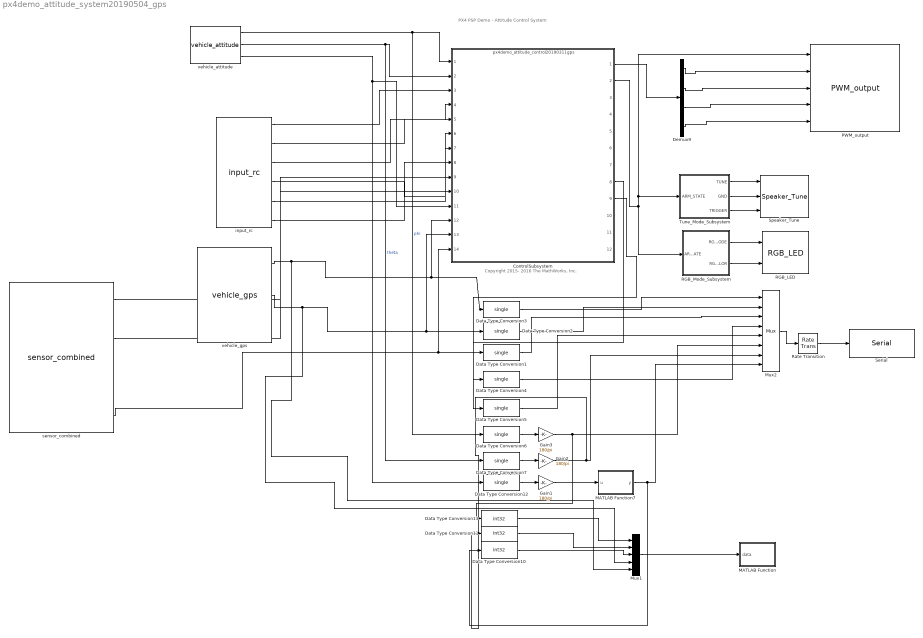
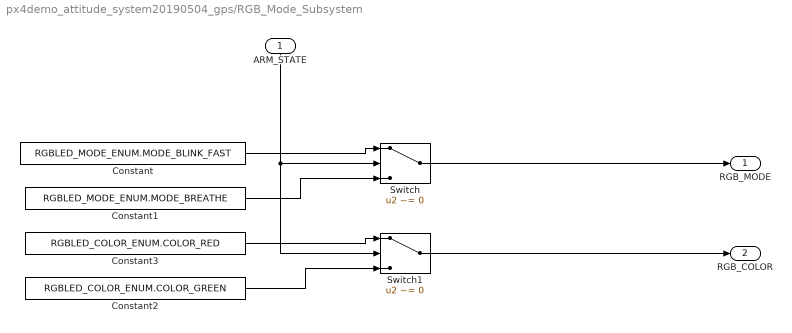
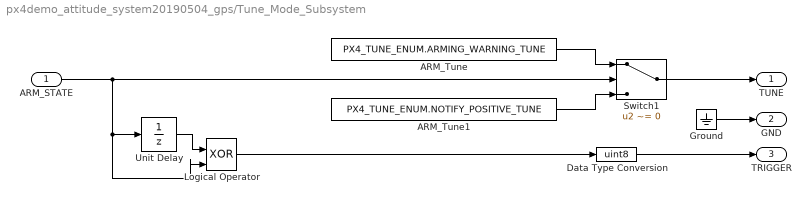
== matlab function px4demo_attitude_system20190504_gps/MATLAB Function ==
function fcn(data)
    file = fopen('/fs/microsd/history.txt','a');
    for i=1:5
        fprintf(file,'%ld/', data(i))
    end
    fprintf(file,'%s\n', ' ')
    fclose(file);
y = data;

== matlab function px4demo_attitude_system20190504_gps/MATLAB Function7 ==
function y = fcn(u)
if(u<=0)
    y=360+u;
else
    y=u
end

/*
 * Academic License - for use in teaching, academic research, and meeting
 * course requirements at degree granting institutions only.  Not for
 * government, commercial, or other organizational use.
 *
 * File: px4demo_attitude_system20190504_gps.c
 *
 * Code generated for Simulink model 'px4demo_attitude_system20190504_gps'.
 *
 * Model version                  : 1.196
 * Simulink Coder version         : 8.11 (R2016b) 25-Aug-2016
 * C/C++ source code generated on : Fri Mar 13 20:43:33 2020
 *
 * Target selection: ert.tlc
 * Embedded hardware selection: ARM Compatible->ARM Cortex
 * Code generation objectives: Unspecified
 * Validation result: Not run
 */

#include "px4demo_attitude_system20190504_gps.h"
#include "px4demo_attitude_system20190504_gps_private.h"
#define px4demo_attitude_system20_block (true)

const char *g_pwm_device = PWM_OUTPUT0_DEVICE_PATH;
int g_pwm_fd = -1;
bool g_pwm_enabled = false;
rtTimingBridge px4demo_attitude_sys_TimingBrdg;
const uint8_T px4demo_attitude_system20190504_gps_U8GND = 0U;/* uint8_T ground */

/* Block signals (auto storage) */
B_px4demo_attitude_system2019_T px4demo_attitude_system201905_B;

/* Block states (auto storage) */
DW_px4demo_attitude_system201_T px4demo_attitude_system20190_DW;

/* Real-time model */
RT_MODEL_px4demo_attitude_sys_T px4demo_attitude_system20190_M_;
RT_MODEL_px4demo_attitude_sys_T *const px4demo_attitude_system20190_M =
  &px4demo_attitude_system20190_M_;

/* Forward declaration for local functions */
static int8_T px4demo_attitude_syste_filedata(void);
static real_T px4demo_attitude_sy_fileManager(void);
static real_T px4demo_attitude_system20_fopen(void);
static void px4demo_attitude__fileManager_b(real_T varargin_1, FILE * *f,
  boolean_T *a);
static int32_T px4demo_attitude_sys_cfprintf_n(real_T fileID, const char
  * varargin_1);
static FILE * px4demo_attitud_fileManager_bxg(int8_T varargin_1);
static int32_T px4demo_attitude_fileManager_bx(real_T varargin_1);
static void px4demo_attitude_system2_fclose(real_T fileID);
static int32_T px4demo_attitude_syste_cfprintf(real_T fileID, int32_T varargin_1);
static void rate_scheduler(void);

/*
 *   This function updates active task flag for each subrate.
 * The function is called at model base rate, hence the
 * generated code self-manages all its subrates.
 */
static void rate_scheduler(void)
{
  /* Compute which subrates run during the next base time step.  Subrates
   * are an integer multiple of the base rate counter.  Therefore, the subtask
   * counter is reset when it reaches its limit (zero means run).
   */
  (px4demo_attitude_system20190_M->Timing.TaskCounters.TID[1])++;
  if ((px4demo_attitude_system20190_M->Timing.TaskCounters.TID[1]) > 24) {/* Sample time: [0.1s, 0.0s] */
    px4demo_attitude_system20190_M->Timing.TaskCounters.TID[1] = 0;
  }

  (px4demo_attitude_system20190_M->Timing.TaskCounters.TID[2])++;
  if ((px4demo_attitude_system20190_M->Timing.TaskCounters.TID[2]) > 74) {/* Sample time: [0.3s, 0.0s] */
    px4demo_attitude_system20190_M->Timing.TaskCounters.TID[2] = 0;
  }

  (px4demo_attitude_system20190_M->Timing.TaskCounters.TID[3])++;
  if ((px4demo_attitude_system20190_M->Timing.TaskCounters.TID[3]) > 124) {/* Sample time: [0.5s, 0.0s] */
    px4demo_attitude_system20190_M->Timing.TaskCounters.TID[3] = 0;
  }

  (px4demo_attitude_system20190_M->Timing.TaskCounters.TID[4])++;
  if ((px4demo_attitude_system20190_M->Timing.TaskCounters.TID[4]) > 4999) {/* Sample time: [20.0s, 0.0s] */
    px4demo_attitude_system20190_M->Timing.TaskCounters.TID[4] = 0;
  }
}

/* Function for MATLAB Function: '<Root>/MATLAB Function' */
static int8_T px4demo_attitude_syste_filedata(void)
{
  int8_T f;
  boolean_T exitg1;
  f = 0;
  px4demo_attitude_system201905_B.k = 1;
  exitg1 = false;
  while ((!exitg1) && (px4demo_attitude_system201905_B.k < 21)) {
    if (px4demo_attitude_system20190_DW.eml_openfiles[px4demo_attitude_system201905_B.k
        - 1] == NULL) {
      f = px4demo_attitude_system201905_B.k;
      exitg1 = true;
    } else {
      px4demo_attitude_system201905_B.k++;
    }
  }

  return f;
}

/* Function for MATLAB Function: '<Root>/MATLAB Function' */
static real_T px4demo_attitude_sy_fileManager(void)
{
  FILE * filestar;
  static const char_T b[24] = { '/', 'f', 's', '/', 'm', 'i', 'c', 'r', 'o', 's',
    'd', '/', 'h', 'i', 's', 't', 'o', 'r', 'y', '.', 't', 'x', 't', '\x00' };

  px4demo_attitude_system201905_B.fileid = -1;
  px4demo_attitude_system201905_B.j = px4demo_attitude_syste_filedata();
  if (!(px4demo_attitude_system201905_B.j < 1)) {
    for (px4demo_attitude_system201905_B.i0 = 0;
         px4demo_attitude_system201905_B.i0 < 24;
         px4demo_attitude_system201905_B.i0++) {
      px4demo_attitude_system201905_B.b[px4demo_attitude_system201905_B.i0] =
        b[px4demo_attitude_system201905_B.i0];
    }

    px4demo_attitude_system201905_B.c[0] = 'a';
    px4demo_attitude_system201905_B.c[1] = 'b';
    px4demo_attitude_system201905_B.c[2] = '\x00';
    filestar = fopen(px4demo_attitude_system201905_B.b,
                     px4demo_attitude_system201905_B.c);
    if (filestar != NULL) {
      px4demo_attitude_system20190_DW.eml_openfiles[px4demo_attitude_system201905_B.j
        - 1] = filestar;
      px4demo_attitude_system20190_DW.eml_autoflush[px4demo_attitude_system201905_B.j
        - 1] = true;
      px4demo_attitude_system201905_B.i0 = px4demo_attitude_system201905_B.j + 2;
      if (px4demo_attitude_system201905_B.i0 > 127) {
        px4demo_attitude_system201905_B.i0 = 127;
      }

      px4demo_attitude_system201905_B.fileid = (int8_T)
        px4demo_attitude_system201905_B.i0;
    }
  }

  return px4demo_attitude_system201905_B.fileid;
}

/* Function for MATLAB Function: '<Root>/MATLAB Function' */
static real_T px4demo_attitude_system20_fopen(void)
{
  return px4demo_attitude_sy_fileManager();
}

/* Function for MATLAB Function: '<Root>/MATLAB Function' */
static void px4demo_attitude__fileManager_b(real_T varargin_1, FILE * *f,
  boolean_T *a)
{
  px4demo_attitude_system201905_B.fileid_cx = (int8_T)rt_roundd_snf(varargin_1);
  if ((px4demo_attitude_system201905_B.fileid_cx > 22) ||
      (px4demo_attitude_system201905_B.fileid_cx < 0) || (varargin_1 !=
       px4demo_attitude_system201905_B.fileid_cx)) {
    px4demo_attitude_system201905_B.fileid_cx = -1;
  }

  if (px4demo_attitude_system201905_B.fileid_cx >= 3) {
    px4demo_attitude_system201905_B.fileid_cx = (int8_T)
      (px4demo_attitude_system201905_B.fileid_cx - 2);
    *f =
      px4demo_attitude_system20190_DW.eml_openfiles[px4demo_attitude_system201905_B.fileid_cx
      - 1];
    *a =
      px4demo_attitude_system20190_DW.eml_autoflush[px4demo_attitude_system201905_B.fileid_cx
      - 1];
  } else if (px4demo_attitude_system201905_B.fileid_cx == 0) {
    *f = stdin;
    *a = true;
  } else if (px4demo_attitude_system201905_B.fileid_cx == 1) {
    *f = stdout;
    *a = true;
  } else if (px4demo_attitude_system201905_B.fileid_cx == 2) {
    *f = stderr;
    *a = true;
  } else {
    *f = NULL;
    *a = true;
  }
}

/* Function for MATLAB Function: '<Root>/MATLAB Function' */
static int32_T px4demo_attitude_sys_cfprintf_n(real_T fileID, const char
  * varargin_1)
{
  int32_T nbytesint;
  FILE * b_NULL;
  FILE * filestar;
  static const char_T cfmt[4] = { '%', 's', '\x0a', '\x00' };

  b_NULL = NULL;
  nbytesint = 0;
  px4demo_attitude__fileManager_b(fileID, &filestar,
    &px4demo_attitude_system201905_B.autoflush_b);
  if (!(filestar == b_NULL)) {
    nbytesint = fprintf(filestar, cfmt, varargin_1);
    if (px4demo_attitude_system201905_B.autoflush_b) {
      fflush(filestar);
    }
  }

  return nbytesint;
}

/* Function for MATLAB Function: '<Root>/MATLAB Function' */
static FILE * px4demo_attitud_fileManager_bxg(int8_T varargin_1)
{
  FILE * f;
  px4demo_attitude_system201905_B.fileid_k = varargin_1;
  if ((varargin_1 > 22) || (varargin_1 < 0)) {
    px4demo_attitude_system201905_B.fileid_k = -1;
  }

  if (px4demo_attitude_system201905_B.fileid_k >= 3) {
    f =
      px4demo_attitude_system20190_DW.eml_openfiles[px4demo_attitude_system201905_B.fileid_k
      - 3];
  } else if (px4demo_attitude_system201905_B.fileid_k == 0) {
    f = stdin;
  } else if (px4demo_attitude_system201905_B.fileid_k == 1) {
    f = stdout;
  } else if (px4demo_attitude_system201905_B.fileid_k == 2) {
    f = stderr;
  } else {
    f = NULL;
  }

  return f;
}

/* Function for MATLAB Function: '<Root>/MATLAB Function' */
static int32_T px4demo_attitude_fileManager_bx(real_T varargin_1)
{
  int32_T f;
  FILE * filestar;
  f = -1;
  px4demo_attitude_system201905_B.fileid_c = (int8_T)rt_roundd_snf(varargin_1);
  if ((px4demo_attitude_system201905_B.fileid_c > 22) ||
      (px4demo_attitude_system201905_B.fileid_c < 0) || (varargin_1 !=
       px4demo_attitude_system201905_B.fileid_c)) {
    px4demo_attitude_system201905_B.fileid_c = -1;
  }

  filestar = px4demo_attitud_fileManager_bxg
    (px4demo_attitude_system201905_B.fileid_c);
  if (!((filestar == NULL) || (px4demo_attitude_system201905_B.fileid_c < 3))) {
    px4demo_attitude_system201905_B.cst = fclose(filestar);
    if (px4demo_attitude_system201905_B.cst == 0) {
      f = 0;
      px4demo_attitude_system201905_B.fileid_c = (int8_T)
        (px4demo_attitude_system201905_B.fileid_c - 2);
      px4demo_attitude_system20190_DW.eml_openfiles[px4demo_attitude_system201905_B.fileid_c
        - 1] = NULL;
      px4demo_attitude_system20190_DW.eml_autoflush[px4demo_attitude_system201905_B.fileid_c
        - 1] = true;
    }
  }

  return f;
}

/* Function for MATLAB Function: '<Root>/MATLAB Function' */
static void px4demo_attitude_system2_fclose(real_T fileID)
{
  px4demo_attitude_fileManager_bx(fileID);
}

/* Function for MATLAB Function: '<Root>/MATLAB Function' */
static int32_T px4demo_attitude_syste_cfprintf(real_T fileID, int32_T varargin_1)
{
  int32_T nbytesint;
  FILE * b_NULL;
  FILE * filestar;
  static const char_T cfmt[5] = { '%', 'l', 'd', '/', '\x00' };

  b_NULL = NULL;
  nbytesint = 0;
  px4demo_attitude__fileManager_b(fileID, &filestar,
    &px4demo_attitude_system201905_B.autoflush);
  if (!(filestar == b_NULL)) {
    nbytesint = fprintf(filestar, cfmt, varargin_1);
    if (px4demo_attitude_system201905_B.autoflush) {
      fflush(filestar);
    }
  }

  return nbytesint;
}

/* Model step function */
void px4demo_attitude_system20190504_gps_step(void)
{
  /* S-Function (sfun_px4_vehicle_attitude): '<Root>/vehicle_attitude' */
  {
    bool updated;
    orb_check(px4demo_attitude_system20190_DW.vehicle_attitude_vehicle_attitu.fd,
              &updated);
    if (updated) {
      struct vehicle_attitude_s raw;
      orb_copy(ORB_ID(vehicle_attitude),
               px4demo_attitude_system20190_DW.vehicle_attitude_vehicle_attitu.fd,
               &raw);

      /* read out the Roll value */
      px4demo_attitude_system201905_B.phi = raw.roll;// phi

      /* read out the Pitch value */
      px4demo_attitude_system201905_B.theta = raw.pitch;// theta

      /* read out the Yaw value */
      px4demo_attitude_system201905_B.vehicle_attitude_o3 = raw.yaw;// psi
    }
  }

  /* Gain: '<Root>/Gain3' */
  px4demo_attitude_system201905_B.Gain3 = 57.2957802F *
    px4demo_attitude_system201905_B.phi;

  /* Gain: '<Root>/Gain2' */
  px4demo_attitude_system201905_B.Gain2 = 57.2957802F *
    px4demo_attitude_system201905_B.theta;

  /* Gain: '<Root>/Gain1' */
  px4demo_attitude_system201905_B.Gain1 = 57.2957802F *
    px4demo_attitude_system201905_B.vehicle_attitude_o3;

  /* MATLAB Function: '<Root>/MATLAB Function7' */
  /* MATLAB Function 'MATLAB Function7': '<S2>:1' */
  if (px4demo_attitude_system201905_B.Gain1 <= 0.0F) {
    /* '<S2>:1:2' */
    /* '<S2>:1:3' */
    px4demo_attitude_system201905_B.Gain1 += 360.0F;
  } else {
    /* '<S2>:1:5' */
  }

  /* End of MATLAB Function: '<Root>/MATLAB Function7' */

  /* S-Function (sfun_px4_gps): '<Root>/vehicle_gps' */
  {
    int poll_ret;
    bool updated;
    orb_check(px4demo_attitude_system20190_DW.vehicle_gps_gps_fd.fd, &updated);
    if (updated) {
      /* obtained GPS data */
      struct vehicle_gps_position_s raw;

      /* copy sensors raw data into local buffer */
      orb_copy(ORB_ID(vehicle_gps_position),
               px4demo_attitude_system20190_DW.vehicle_gps_gps_fd.fd, &raw);

      /* read out Lat/Lon Values */
      px4demo_attitude_system201905_B.vehicle_gps_o1 = raw.lat;
      px4demo_attitude_system201905_B.vehicle_gps_o2 = raw.lon;

      /* 0-1: no fix, 2: 2D fix, 3: 3D fix. Some applications will not use the value of this field unless it is at least two, so always correctly fill in the fix.   */
      px4demo_attitude_system201905_B.vehicle_gps_o3 = raw.fix_type;
    }
  }

  /* DataTypeConversion: '<Root>/Data Type Conversion13' */
  px4demo_attitude_system201905_B.f0 = (real32_T)floor
    (px4demo_attitude_system201905_B.Gain3);
  if (rtIsNaNF(px4demo_attitude_system201905_B.f0) || rtIsInfF
      (px4demo_attitude_system201905_B.f0)) {
    px4demo_attitude_system201905_B.f0 = 0.0F;
  } else {
    px4demo_attitude_system201905_B.f0 = (real32_T)fmod
      (px4demo_attitude_system201905_B.f0, 4.2949673E+9F);
  }

  /* SignalConversion: '<S1>/TmpSignal ConversionAt SFunction Inport1' incorporates:
   *  DataTypeConversion: '<Root>/Data Type Conversion13'
   *  MATLAB Function: '<Root>/MATLAB Function'
   */
  px4demo_attitude_system201905_B.TmpSignalConversionAtSFunctionI[0] =
    px4demo_attitude_system201905_B.f0 < 0.0F ? -(int32_T)(uint32_T)
    -px4demo_attitude_system201905_B.f0 : (int32_T)(uint32_T)
    px4demo_attitude_system201905_B.f0;

  /* DataTypeConversion: '<Root>/Data Type Conversion11' */
  px4demo_attitude_system201905_B.f0 = (real32_T)floor
    (px4demo_attitude_system201905_B.Gain2);
  if (rtIsNaNF(px4demo_attitude_system201905_B.f0) || rtIsInfF
      (px4demo_attitude_system201905_B.f0)) {
    px4demo_attitude_system201905_B.f0 = 0.0F;
  } else {
    px4demo_attitude_system201905_B.f0 = (real32_T)fmod
      (px4demo_attitude_system201905_B.f0, 4.2949673E+9F);
  }

  /* SignalConversion: '<S1>/TmpSignal ConversionAt SFunction Inport1' incorporates:
   *  DataTypeConversion: '<Root>/Data Type Conversion11'
   *  MATLAB Function: '<Root>/MATLAB Function'
   */
  px4demo_attitude_system201905_B.TmpSignalConversionAtSFunctionI[1] =
    px4demo_attitude_system201905_B.f0 < 0.0F ? -(int32_T)(uint32_T)
    -px4demo_attitude_system201905_B.f0 : (int32_T)(uint32_T)
    px4demo_attitude_system201905_B.f0;

  /* DataTypeConversion: '<Root>/Data Type Conversion10' */
  px4demo_attitude_system201905_B.f0 = (real32_T)floor
    (px4demo_attitude_system201905_B.Gain1);
  if (rtIsNaNF(px4demo_attitude_system201905_B.f0) || rtIsInfF
      (px4demo_attitude_system201905_B.f0)) {
    px4demo_attitude_system201905_B.f0 = 0.0F;
  } else {
    px4demo_attitude_system201905_B.f0 = (real32_T)fmod
      (px4demo_attitude_system201905_B.f0, 4.2949673E+9F);
  }

  /* SignalConversion: '<S1>/TmpSignal ConversionAt SFunction Inport1' incorporates:
   *  DataTypeConversion: '<Root>/Data Type Conversion10'
   *  MATLAB Function: '<Root>/MATLAB Function'
   */
  px4demo_attitude_system201905_B.TmpSignalConversionAtSFunctionI[2] =
    px4demo_attitude_system201905_B.f0 < 0.0F ? -(int32_T)(uint32_T)
    -px4demo_attitude_system201905_B.f0 : (int32_T)(uint32_T)
    px4demo_attitude_system201905_B.f0;
  px4demo_attitude_system201905_B.TmpSignalConversionAtSFunctionI[3] =
    px4demo_attitude_system201905_B.vehicle_gps_o2;
  px4demo_attitude_system201905_B.TmpSignalConversionAtSFunctionI[4] =
    px4demo_attitude_system201905_B.vehicle_gps_o1;

  /* MATLAB Function: '<Root>/MATLAB Function' */
  /* MATLAB Function 'MATLAB Function': '<S1>:1' */
  /* '<S1>:1:2' */
  px4demo_attitude_system201905_B.file = px4demo_attitude_system20_fopen();

  /* '<S1>:1:3' */
  for (px4demo_attitude_system201905_B.i = 0; px4demo_attitude_system201905_B.i <
       5; px4demo_attitude_system201905_B.i++) {
    /* '<S1>:1:3' */
    /* '<S1>:1:4' */
    px4demo_attitude_syste_cfprintf(px4demo_attitude_system201905_B.file,
      px4demo_attitude_system201905_B.TmpSignalConversionAtSFunctionI[px4demo_attitude_system201905_B.i]);
  }

  /* '<S1>:1:6' */
  px4demo_attitude_sys_cfprintf_n(px4demo_attitude_system201905_B.file, " ");

  /* '<S1>:1:7' */
  px4demo_attitude_system2_fclose(px4demo_attitude_system201905_B.file);

  /* S-Function (sfun_px4_input_rc): '<Root>/input_rc' */
  {
    bool updated;
    orb_check(px4demo_attitude_system20190_DW.input_rc_input_rc_fd.fd, &updated);
    if (updated) {
      struct rc_input_values pwm_inputs;

      /* copy input_rc raw data into local buffer (uint16)*/
      orb_copy(ORB_ID(input_rc),
               px4demo_attitude_system20190_DW.input_rc_input_rc_fd.fd,
               &pwm_inputs);
      px4demo_attitude_system201905_B.input_rc_o1 = pwm_inputs.values[0];
      px4demo_attitude_system201905_B.input_rc_o2 = pwm_inputs.values[1];
      px4demo_attitude_system201905_B.input_rc_o3 = pwm_inputs.values[2];
      px4demo_attitude_system201905_B.input_rc_o4 = pwm_inputs.values[3];
      px4demo_attitude_system201905_B.input_rc_o5 = pwm_inputs.values[4];
      px4demo_attitude_system201905_B.input_rc_o6 = pwm_inputs.values[5];
    }
  }

  /* S-Function (sfun_px4_sensor_combined): '<Root>/sensor_combined' */
  {
    bool updated;
    orb_check(px4demo_attitude_system20190_DW.sensor_combined_sensor_fd.fd,
              &updated);
    if (updated) {
      /* obtained data sensor combined */
      struct sensor_combined_s raw;

      /* copy sensors raw data into local buffer */
      orb_copy(ORB_ID(sensor_combined),
               px4demo_attitude_system20190_DW.sensor_combined_sensor_fd.fd,
               &raw);

      /* read out the gyro X,Y,Z */
      px4demo_attitude_system201905_B.sensor_combined_o1 = (float)
        raw.gyro_rad_s[0];
      px4demo_attitude_system201905_B.sensor_combined_o2 = (float)
        raw.gyro_rad_s[1];
      px4demo_attitude_system201905_B.sensor_combined_o3 = (float)
        raw.gyro_rad_s[2];

      /* read out the baro altimeter */
      px4demo_attitude_system201905_B.sensor_combined_o4 = (float)
        raw.baro_alt_meter[0];
    }
  }

  /* ModelReference: '<Root>/ControlSubsystem' */
  px4demo_attitude_control2019031(&px4demo_attitude_system201905_B.phi,
    &px4demo_attitude_system201905_B.theta,
    &px4demo_attitude_system201905_B.input_rc_o1,
    &px4demo_attitude_system201905_B.input_rc_o2,
    &px4demo_attitude_system201905_B.input_rc_o3,
    &px4demo_attitude_system201905_B.input_rc_o4,
    &px4demo_attitude_system201905_B.input_rc_o5,
    &px4demo_attitude_system201905_B.input_rc_o6,
    &px4demo_attitude_system201905_B.sensor_combined_o1,
    &px4demo_attitude_system201905_B.sensor_combined_o2,
    &px4demo_attitude_system201905_B.vehicle_attitude_o3,
    &px4demo_attitude_system201905_B.vehicle_gps_o1,
    &px4demo_attitude_system201905_B.vehicle_gps_o2,
    &px4demo_attitude_system201905_B.sensor_combined_o4,
    &px4demo_attitude_system201905_B.ControlSubsystem_o1[0],
    &px4demo_attitude_system201905_B.ControlSubsystem_o2,
    &px4demo_attitude_system201905_B.ControlSubsystem_o3,
    &px4demo_attitude_system201905_B.ControlSubsystem_o4,
    &px4demo_attitude_system201905_B.ControlSubsystem_o5,
    &px4demo_attitude_system201905_B.ControlSubsystem_o6,
    &px4demo_attitude_system201905_B.ControlSubsystem_o7,
    &px4demo_attitude_system201905_B.ControlSubsystem_o8,
    &px4demo_attitude_system201905_B.ControlSubsystem_o9,
    &px4demo_attitude_system201905_B.ControlSubsystem_o10,
    &px4demo_attitude_system201905_B.ControlSubsystem_o11,
    &px4demo_attitude_system201905_B.ControlSubsystem_o12,
    &(px4demo_attitude_system20190_DW.ControlSubsystem_DWORK1.rtb),
    &(px4demo_attitude_system20190_DW.ControlSubsystem_DWORK1.rtdw));

  /* S-Function (sfun_px4_pwm): '<Root>/PWM_output' */
  if (px4demo_attitude_system201905_B.ControlSubsystem_o2 == true) {
    if (g_pwm_enabled == false) {
      int rc;

      /* arm system */
      rc = ioctl(g_pwm_fd, PWM_SERVO_ARM, 0);
      if (rc != OK)
        err(1,"PWM_SERVO_ARM");
      else {
        ioctl(g_pwm_fd, PWM_SERVO_SET(0), 900);
        ioctl(g_pwm_fd, PWM_SERVO_SET(1), 900);
        ioctl(g_pwm_fd, PWM_SERVO_SET(2), 900);
        ioctl(g_pwm_fd, PWM_SERVO_SET(3), 900);
        g_pwm_enabled = true;
        printf("***ARMED*** PWM fd = %d\n", g_pwm_fd);
      }
    }
  } else {
    if (g_pwm_enabled == true) {
      int rc;

      /* disarm system if enabled */
      ioctl(g_pwm_fd, PWM_SERVO_SET(0), 900);
      ioctl(g_pwm_fd, PWM_SERVO_SET(1), 900);
      ioctl(g_pwm_fd, PWM_SERVO_SET(2), 900);
      ioctl(g_pwm_fd, PWM_SERVO_SET(3), 900);
      rc = ioctl(g_pwm_fd, PWM_SERVO_DISARM, 0);
      g_pwm_enabled = false;
      if (rc != OK)
        err(1, "PWM_SERVO_DISARM");
      else
        printf("***DISARMED*** PWM fd = %d\n", g_pwm_fd);
    }
  }

  if (g_pwm_enabled) {
    /* output the PWM signals */
    ioctl(g_pwm_fd, PWM_SERVO_SET(0), (unsigned int)
          px4demo_attitude_system201905_B.ControlSubsystem_o1[0]);
    ioctl(g_pwm_fd, PWM_SERVO_SET(1), (unsigned int)
          px4demo_attitude_system201905_B.ControlSubsystem_o1[1]);
    ioctl(g_pwm_fd, PWM_SERVO_SET(2), (unsigned int)
          px4demo_attitude_system201905_B.ControlSubsystem_o1[2]);
    ioctl(g_pwm_fd, PWM_SERVO_SET(3), (unsigned int)
          px4demo_attitude_system201905_B.ControlSubsystem_o1[3]);
  }

  if (px4demo_attitude_system20190_M->Timing.TaskCounters.TID[3] == 0) {
    /* Switch: '<S3>/Switch' incorporates:
     *  Constant: '<S3>/Constant'
     *  Constant: '<S3>/Constant1'
     *  Constant: '<S3>/Constant2'
     *  Constant: '<S3>/Constant3'
     *  Switch: '<S3>/Switch1'
     */
    if (px4demo_attitude_system201905_B.ControlSubsystem_o2) {
      px4demo_attitude_system201905_B.Switch = MODE_BLINK_FAST;
      px4demo_attitude_system201905_B.Switch1 = COLOR_RED;
    } else {
      px4demo_attitude_system201905_B.Switch = MODE_BREATHE;
      px4demo_attitude_system201905_B.Switch1 = COLOR_GREEN;
    }

    /* End of Switch: '<S3>/Switch' */

    /* S-Function (sfun_px4_rgbled): '<Root>/RGB_LED' */
    ioctl(px4demo_attitude_system20190_DW.RGB_LED_rgbled_fd, RGBLED_SET_MODE,
          px4demo_attitude_system201905_B.Switch);
    ioctl(px4demo_attitude_system20190_DW.RGB_LED_rgbled_fd, RGBLED_SET_COLOR,
          px4demo_attitude_system201905_B.Switch1);
  }

  /* RateTransition: '<Root>/Rate Transition' incorporates:
   *  DataTypeConversion: '<Root>/Data Type Conversion2'
   *  DataTypeConversion: '<Root>/Data Type Conversion3'
   */
  if (px4demo_attitude_system20190_M->Timing.TaskCounters.TID[2] == 0) {
    px4demo_attitude_system201905_B.RateTransition_m[0] = (real32_T)
      px4demo_attitude_system201905_B.vehicle_gps_o1;
    px4demo_attitude_system201905_B.RateTransition_m[1] = (real32_T)
      px4demo_attitude_system201905_B.vehicle_gps_o2;
    px4demo_attitude_system201905_B.RateTransition_m[2] =
      px4demo_attitude_system201905_B.sensor_combined_o4;
    px4demo_attitude_system201905_B.RateTransition_m[3] =
      px4demo_attitude_system201905_B.ControlSubsystem_o8;
    px4demo_attitude_system201905_B.RateTransition_m[4] =
      px4demo_attitude_system201905_B.ControlSubsystem_o9;
    px4demo_attitude_system201905_B.RateTransition_m[5] =
      px4demo_attitude_system201905_B.Gain3;
    px4demo_attitude_system201905_B.RateTransition_m[6] =
      px4demo_attitude_system201905_B.Gain2;
    px4demo_attitude_system201905_B.RateTransition_m[7] =
      px4demo_attitude_system201905_B.Gain1;

    /* Start for MATLABSystem: '<Root>/Serial' incorporates:
     *  DataTypeConversion: '<Root>/Data Type Conversion2'
     *  DataTypeConversion: '<Root>/Data Type Conversion3'
     *  MATLABSystem: '<Root>/Serial'
     */
    MW_writeSerial(px4demo_attitude_system20190_DW.obj.fh_index,
                   px4demo_attitude_system201905_B.RateTransition_m, 32U);
  }

  /* End of RateTransition: '<Root>/Rate Transition' */

  /* Switch: '<S4>/Switch1' incorporates:
   *  Constant: '<S4>/ARM_Tune'
   *  Constant: '<S4>/ARM_Tune1'
   */
  if (px4demo_attitude_system201905_B.ControlSubsystem_o2) {
    px4demo_attitude_system201905_B.Switch1_i = ARMING_WARNING_TUNE;
  } else {
    px4demo_attitude_system201905_B.Switch1_i = NOTIFY_POSITIVE_TUNE;
  }

  /* End of Switch: '<S4>/Switch1' */

  /* DataTypeConversion: '<S4>/Data Type Conversion' incorporates:
   *  Logic: '<S4>/Logical Operator'
   *  UnitDelay: '<S4>/Unit Delay'
   */
  px4demo_attitude_system201905_B.DataTypeConversion = (uint8_T)((int8_T)
    px4demo_attitude_system20190_DW.UnitDelay_DSTATE ^ (int8_T)
    px4demo_attitude_system201905_B.ControlSubsystem_o2);

  /* S-Function (sfun_px4_tune): '<Root>/Speaker_Tune' */
  if (px4demo_attitude_system20190_DW.Speaker_Tune_tune_fd == -1) {
    px4demo_attitude_system20190_DW.Speaker_Tune_tune_fd = open
      (TONEALARM0_DEVICE_PATH, O_WRONLY);
    if ((px4demo_attitude_system201905_B.DataTypeConversion > 0) &&
        (px4demo_attitude_system201905_B.DataTypeConversion !=
         px4demo_attitude_system20190_DW.Speaker_Tune_triggerState)) {
      if (px4demo_attitude_system201905_B.DataTypeConversion == 1) {
        ioctl(px4demo_attitude_system20190_DW.Speaker_Tune_tune_fd,
              TONE_SET_ALARM, px4demo_attitude_system201905_B.Switch1_i);
      } else if (px4demo_attitude_system201905_B.DataTypeConversion == 2) {
        write(px4demo_attitude_system20190_DW.Speaker_Tune_tune_fd, (uint8_T*)
              &px4demo_attitude_system20190504_gps_U8GND, 1);
      }
    }

    // save the state of the trigger
    px4demo_attitude_system20190_DW.Speaker_Tune_triggerState =
      px4demo_attitude_system201905_B.DataTypeConversion;
  } else {
    if ((px4demo_attitude_system201905_B.DataTypeConversion > 0) &&
        (px4demo_attitude_system201905_B.DataTypeConversion !=
         px4demo_attitude_system20190_DW.Speaker_Tune_triggerState)) {
      if (px4demo_attitude_system201905_B.DataTypeConversion == 1) {
        ioctl(px4demo_attitude_system20190_DW.Speaker_Tune_tune_fd,
              TONE_SET_ALARM, px4demo_attitude_system201905_B.Switch1_i);
      } else if (px4demo_attitude_system201905_B.DataTypeConversion == 2) {
        write(px4demo_attitude_system20190_DW.Speaker_Tune_tune_fd, (uint8_T*)
              &px4demo_attitude_system20190504_gps_U8GND, 1);
      }
    }

    // save the state of the trigger
    px4demo_attitude_system20190_DW.Speaker_Tune_triggerState =
      px4demo_attitude_system201905_B.DataTypeConversion;
  }

  /* Update for UnitDelay: '<S4>/Unit Delay' */
  px4demo_attitude_system20190_DW.UnitDelay_DSTATE =
    px4demo_attitude_system201905_B.ControlSubsystem_o2;
  rate_scheduler();
}
